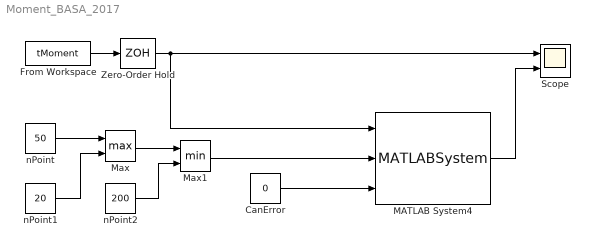
/*
 * Moment_BASA_2017.c
 *
 * Code generation for model "Moment_BASA_2017".
 *
 * Model version              : 1.26
 * Simulink Coder version : 8.12 (R2017a) 16-Feb-2017
 * C source code generated on : Fri Jan 14 15:39:42 2022
 *
 * Target selection: grt.tlc
 * Note: GRT includes extra infrastructure and instrumentation for prototyping
 * Embedded hardware selection: Intel->x86-64 (Windows64)
 * Code generation objectives: Unspecified
 * Validation result: Not run
 */

#include "Moment_BASA_2017.h"
#include "Moment_BASA_2017_private.h"

/* Block signals (auto storage) */
B_Moment_BASA_2017_T Moment_BASA_2017_B;

/* Block states (auto storage) */
DW_Moment_BASA_2017_T Moment_BASA_2017_DW;

/* Real-time model */
RT_MODEL_Moment_BASA_2017_T Moment_BASA_2017_M_;
RT_MODEL_Moment_BASA_2017_T *const Moment_BASA_2017_M = &Moment_BASA_2017_M_;

/* Forward declaration for local functions */
static void Moment_BASA_2017_emxInit_real_T(emxArray_real_T_Moment_BASA_2_T
  **pEmxArray, int32_T numDimensions);
static void Moment_BA_emxInitStruct_CMoment(CMoment_Moment_BASA_2017_T *pStruct);
static void Moment_BASA_2_emxEnsureCapacity(emxArray__common_Moment_BASA__T
  *emxArray, int32_T oldNumel, uint32_T elementSize);
static real_T Moment_BASA_2017_sum(const emxArray_real_T_Moment_BASA_2_T *x);
static void Moment_BASA_2017_power(const emxArray_real_T_Moment_BASA_2_T *a,
  emxArray_real_T_Moment_BASA_2_T *y);
static void Moment_BASA_2017_emxFree_real_T(emxArray_real_T_Moment_BASA_2_T
  **pEmxArray);
static real_T Moment_BASA_201_SystemCore_step(CMoment_Moment_BASA_2017_T *obj,
  real_T varargin_1, real_T varargin_2, real_T varargin_3);
static void Moment_BA_emxFreeStruct_CMoment(CMoment_Moment_BASA_2017_T *pStruct);
static void Moment_BASA_2017_emxInit_real_T(emxArray_real_T_Moment_BASA_2_T
  **pEmxArray, int32_T numDimensions)
{
  emxArray_real_T_Moment_BASA_2_T *emxArray;
  int32_T i;
  *pEmxArray = (emxArray_real_T_Moment_BASA_2_T *)malloc(sizeof
    (emxArray_real_T_Moment_BASA_2_T));
  emxArray = *pEmxArray;
  emxArray->data = (real_T *)NULL;
  emxArray->numDimensions = numDimensions;
  emxArray->size = (int32_T *)malloc((uint32_T)(sizeof(int32_T) * numDimensions));
  emxArray->allocatedSize = 0;
  emxArray->canFreeData = true;
  for (i = 0; i < numDimensions; i++) {
    emxArray->size[i] = 0;
  }
}

static void Moment_BA_emxInitStruct_CMoment(CMoment_Moment_BASA_2017_T *pStruct)
{
  Moment_BASA_2017_emxInit_real_T(&pStruct->x0, 2);
  Moment_BASA_2017_emxInit_real_T(&pStruct->x_0, 2);
}

static void Moment_BASA_2_emxEnsureCapacity(emxArray__common_Moment_BASA__T
  *emxArray, int32_T oldNumel, uint32_T elementSize)
{
  int32_T newNumel;
  int32_T i;
  void *newData;
  if (oldNumel < 0) {
    oldNumel = 0;
  }

  newNumel = 1;
  for (i = 0; i < emxArray->numDimensions; i++) {
    newNumel *= emxArray->size[i];
  }

  if (newNumel > emxArray->allocatedSize) {
    i = emxArray->allocatedSize;
    if (i < 16) {
      i = 16;
    }

    while (i < newNumel) {
      if (i > 1073741823) {
        i = MAX_int32_T;
      } else {
        i <<= 1;
      }
    }

    newData = calloc((uint32_T)i, elementSize);
    if (emxArray->data != NULL) {
      memcpy(newData, emxArray->data, elementSize * oldNumel);
      if (emxArray->canFreeData) {
        free(emxArray->data);
      }
    }

    emxArray->data = newData;
    emxArray->allocatedSize = i;
    emxArray->canFreeData = true;
  }
}

static real_T Moment_BASA_2017_sum(const emxArray_real_T_Moment_BASA_2_T *x)
{
  real_T y;
  int32_T k;

  /* Start for MATLABSystem: '<Root>/MATLAB System4' */
  if (x->size[1] == 0) {
    y = 0.0;
  } else {
    y = x->data[0];
    for (k = 1; k + 1 <= x->size[1]; k++) {
      y += x->data[k];
    }
  }

  /* End of Start for MATLABSystem: '<Root>/MATLAB System4' */
  return y;
}

static void Moment_BASA_2017_power(const emxArray_real_T_Moment_BASA_2_T *a,
  emxArray_real_T_Moment_BASA_2_T *y)
{
  int32_T k;

  /* Start for MATLABSystem: '<Root>/MATLAB System4' */
  k = y->size[0] * y->size[1];
  y->size[0] = 1;
  y->size[1] = a->size[1];
  Moment_BASA_2_emxEnsureCapacity((emxArray__common_Moment_BASA__T *)y, k,
    sizeof(real_T));
  for (k = 0; k + 1 <= a->size[1]; k++) {
    y->data[k] = a->data[k] * a->data[k];
  }

  /* End of Start for MATLABSystem: '<Root>/MATLAB System4' */
}

static void Moment_BASA_2017_emxFree_real_T(emxArray_real_T_Moment_BASA_2_T
  **pEmxArray)
{
  if (*pEmxArray != (emxArray_real_T_Moment_BASA_2_T *)NULL) {
    if (((*pEmxArray)->data != (real_T *)NULL) && (*pEmxArray)->canFreeData) {
      free((void *)(*pEmxArray)->data);
    }

    free((void *)(*pEmxArray)->size);
    free((void *)*pEmxArray);
    *pEmxArray = (emxArray_real_T_Moment_BASA_2_T *)NULL;
  }
}

real_T rt_roundd_snf(real_T u)
{
  real_T y;
  if (fabs(u) < 4.503599627370496E+15) {
    if (u >= 0.5) {
      y = floor(u + 0.5);
    } else if (u > -0.5) {
      y = u * 0.0;
    } else {
      y = ceil(u - 0.5);
    }
  } else {
    y = u;
  }

  return y;
}

static real_T Moment_BASA_201_SystemCore_step(CMoment_Moment_BASA_2017_T *obj,
  real_T varargin_1, real_T varargin_2, real_T varargin_3)
{
  CMoment_Moment_BASA_2017_T *obj_0;
  real_T n;
  real_T yy_data[200];
  real_T ysum;
  real_T xy_data[200];
  real_T z1;
  int32_T i;
  int32_T i_0;
  emxArray_real_T_Moment_BASA_2_T *tmp;
  emxArray_real_T_Moment_BASA_2_T *tmp_0;
  real_T obj_data[200];
  int32_T loop_ub;
  int32_T yy_size[2];
  int32_T xy_size[2];
  int32_T obj_size[2];
  emxArray_real_T_Moment_BASA_2_T obj_data_0;
  emxArray_real_T_Moment_BASA_2_T yy_data_0;
  emxArray_real_T_Moment_BASA_2_T xy_data_0;

  /* Start for MATLABSystem: '<Root>/MATLAB System4' */
  obj_0 = obj;
  n = fmax(fmin(varargin_2, 200.0), 6.0);
  obj_0->nm = n;
  ysum = obj_0->NCount;
  if (2.0 > ysum) {
    i_0 = 0;
    i = 0;
  } else {
    i_0 = 1;
    i = (int32_T)ysum;
  }

  yy_size[0] = 1;
  yy_size[1] = i - i_0;
  loop_ub = i - i_0;
  for (i = 0; i < loop_ub; i++) {
    yy_data[yy_size[0] * i] = obj_0->m[i_0 + i];
  }

  loop_ub = yy_size[1];
  for (i_0 = 0; i_0 < loop_ub; i_0++) {
    obj_0->m[i_0] = yy_data[yy_size[0] * i_0];
  }

  if (varargin_3 == 0.0) {
    obj_0->m[(int32_T)obj_0->NCount - 1] = varargin_1;
  } else {
    obj_0->m[(int32_T)obj_0->NCount - 1] = obj_0->m[(int32_T)(obj_0->NCount -
      1.0) - 1];
  }

  /*             kodError = length(obj.x0) */
  /*             if (obj.nm ~= n) | (kodError==0) */
  obj_0->nm = n;
  i_0 = obj_0->x0->size[0] * obj_0->x0->size[1];
  obj_0->x0->size[0] = 1;
  obj_0->x0->size[1] = (int32_T)floor(n - 1.0) + 1;
  Moment_BASA_2_emxEnsureCapacity((emxArray__common_Moment_BASA__T *)obj_0->x0,
    i_0, sizeof(real_T));
  loop_ub = (int32_T)floor(n - 1.0);
  for (i_0 = 0; i_0 <= loop_ub; i_0++) {
    obj_0->x0->data[obj_0->x0->size[0] * i_0] = i_0;
  }

  obj_size[0] = 1;
  obj_size[1] = (int32_T)n;
  loop_ub = (int32_T)n;
  for (i_0 = 0; i_0 < loop_ub; i_0++) {
    obj_data[obj_size[0] * i_0] = obj_0->x0->data[obj_0->x0->size[0] * i_0];
  }

  Moment_BASA_2017_emxInit_real_T(&tmp_0, 2);

  /* Start for MATLABSystem: '<Root>/MATLAB System4' */
  obj_data_0.data = (real_T *)&obj_data;
  obj_data_0.size = (int32_T *)&obj_size;
  obj_data_0.allocatedSize = 200;
  obj_data_0.numDimensions = 2;
  obj_data_0.canFreeData = false;

  /* Start for MATLABSystem: '<Root>/MATLAB System4' */
  obj_0->xsum = Moment_BASA_2017_sum(&obj_data_0);
  Moment_BASA_2017_power(obj_0->x0, tmp_0);
  obj_0->x2sum = Moment_BASA_2017_sum(tmp_0);
  ysum = obj_0->xsum;
  obj_0->x_sr = ysum / n;
  i_0 = obj_0->x_0->size[0] * obj_0->x_0->size[1];
  obj_0->x_0->size[0] = 1;
  obj_0->x_0->size[1] = obj_0->x0->size[1];
  Moment_BASA_2_emxEnsureCapacity((emxArray__common_Moment_BASA__T *)obj_0->x_0,
    i_0, sizeof(real_T));
  loop_ub = obj_0->x0->size[0] * obj_0->x0->size[1];
  Moment_BASA_2017_emxFree_real_T(&tmp_0);

  /* Start for MATLABSystem: '<Root>/MATLAB System4' */
  for (i_0 = 0; i_0 < loop_ub; i_0++) {
    obj_0->x_0->data[i_0] = obj_0->x0->data[i_0] - obj_0->x_sr;
  }

  Moment_BASA_2017_emxInit_real_T(&tmp, 2);

  /* Start for MATLABSystem: '<Root>/MATLAB System4' */
  Moment_BASA_2017_power(obj_0->x_0, tmp);
  obj_0->x_01 = Moment_BASA_2017_sum(tmp);
  z1 = obj_0->x_01;
  obj_0->x_001 = 1.0 / z1;
  obj_0->xsum2 = obj_0->xsum * obj_0->xsum;
  ysum = obj_0->x2sum;
  z1 = obj_0->xsum2;
  obj_0->z0 = ysum / z1;
  z1 = 1.0 - obj_0->z0 * n;
  obj_0->z01 = 1.0 / z1;
  z1 = obj_0->xsum;
  obj_0->z002 = 1.0 / z1;

  /*             end */
  ysum = (obj_0->NCount - obj_0->nm) + 1.0;
  z1 = obj_0->NCount;
  Moment_BASA_2017_emxFree_real_T(&tmp);

  /* Start for MATLABSystem: '<Root>/MATLAB System4' */
  if (ysum > z1) {
    i_0 = 0;
    i = 0;
  } else {
    i_0 = (int32_T)ysum - 1;
    i = (int32_T)z1;
  }

  yy_size[0] = 1;
  yy_size[1] = i - i_0;
  loop_ub = i - i_0;
  for (i = 0; i < loop_ub; i++) {
    yy_data[yy_size[0] * i] = obj_0->m[i_0 + i];
  }

  yy_data_0.data = (real_T *)&yy_data;
  yy_data_0.size = (int32_T *)&yy_size;
  yy_data_0.allocatedSize = 200;
  yy_data_0.numDimensions = 2;
  yy_data_0.canFreeData = false;

  /* Start for MATLABSystem: '<Root>/MATLAB System4' */
  ysum = Moment_BASA_2017_sum(&yy_data_0);
  xy_size[0] = 1;
  xy_size[1] = obj_0->x0->size[1];
  loop_ub = obj_0->x0->size[0] * obj_0->x0->size[1];
  for (i_0 = 0; i_0 < loop_ub; i_0++) {
    xy_data[i_0] = obj_0->x0->data[i_0] * yy_data[i_0];
  }

  xy_data_0.data = (real_T *)&xy_data;
  xy_data_0.size = (int32_T *)&xy_size;
  xy_data_0.allocatedSize = 200;
  xy_data_0.numDimensions = 2;
  xy_data_0.canFreeData = false;

  /* Start for MATLABSystem: '<Root>/MATLAB System4' */
  z1 = Moment_BASA_2017_sum(&xy_data_0) * obj_0->z002;
  z1 = (z1 - obj_0->z0 * ysum) * obj_0->z01;
  ysum = (ysum - z1 * n) * obj_0->z002;
  return (n - rt_roundd_snf(n / 3.0)) * ysum + z1;
}

static void Moment_BA_emxFreeStruct_CMoment(CMoment_Moment_BASA_2017_T *pStruct)
{
  Moment_BASA_2017_emxFree_real_T(&pStruct->x0);
  Moment_BASA_2017_emxFree_real_T(&pStruct->x_0);
}

/* Model step function */
void Moment_BASA_2017_step(void)
{
  /* local block i/o variables */
  real_T rtb_ZeroOrderHold;
  real_T rtb_MATLABSystem4;

  /* FromWorkspace: '<Root>/From Workspace' */
  {
    real_T *pDataValues = (real_T *)
      Moment_BASA_2017_DW.FromWorkspace_PWORK.DataPtr;
    real_T *pTimeValues = (real_T *)
      Moment_BASA_2017_DW.FromWorkspace_PWORK.TimePtr;
    int_T currTimeIndex = Moment_BASA_2017_DW.FromWorkspace_IWORK.PrevIndex;
    real_T t = Moment_BASA_2017_M->Timing.t[0];

    /* Get index */
    if (t <= pTimeValues[0]) {
      currTimeIndex = 0;
    } else if (t >= pTimeValues[8999]) {
      currTimeIndex = 8998;
    } else {
      if (t < pTimeValues[currTimeIndex]) {
        while (t < pTimeValues[currTimeIndex]) {
          currTimeIndex--;
        }
      } else {
        while (t >= pTimeValues[currTimeIndex + 1]) {
          currTimeIndex++;
        }
      }
    }

    Moment_BASA_2017_DW.FromWorkspace_IWORK.PrevIndex = currTimeIndex;

    /* Post output */
    {
      real_T t1 = pTimeValues[currTimeIndex];
      real_T t2 = pTimeValues[currTimeIndex + 1];
      if (t1 == t2) {
        if (t < t1) {
          Moment_BASA_2017_B.FromWorkspace = pDataValues[currTimeIndex];
        } else {
          Moment_BASA_2017_B.FromWorkspace = pDataValues[currTimeIndex + 1];
        }
      } else {
        real_T f1 = (t2 - t) / (t2 - t1);
        real_T f2 = 1.0 - f1;
        real_T d1;
        real_T d2;
        int_T TimeIndex= currTimeIndex;
        d1 = pDataValues[TimeIndex];
        d2 = pDataValues[TimeIndex + 1];
        Moment_BASA_2017_B.FromWorkspace = (real_T) rtInterpolate(d1, d2, f1, f2);
        pDataValues += 9000;
      }
    }
  }

  /* ZeroOrderHold: '<Root>/Zero-Order Hold' */
  rtb_ZeroOrderHold = Moment_BASA_2017_B.FromWorkspace;

  /* MATLABSystem: '<Root>/MATLAB System4' incorporates:
   *  Constant: '<Root>/CanError'
   *  Constant: '<Root>/nPoint'
   *  Constant: '<Root>/nPoint1'
   *  Constant: '<Root>/nPoint2'
   *  Start for MATLABSystem: '<Root>/MATLAB System4'
   *  MinMax: '<Root>/Max'
   *  MinMax: '<Root>/Max1'
   */
  rtb_MATLABSystem4 = Moment_BASA_201_SystemCore_step(&Moment_BASA_2017_DW.obj,
    rtb_ZeroOrderHold, fmin(fmax(Moment_BASA_2017_P.nPoint_Value,
    Moment_BASA_2017_P.nPoint1_Value), Moment_BASA_2017_P.nPoint2_Value),
    Moment_BASA_2017_P.CanError_Value);

  /* Matfile logging */
  rt_UpdateTXYLogVars(Moment_BASA_2017_M->rtwLogInfo,
                      (Moment_BASA_2017_M->Timing.t));

  /* signal main to stop simulation */
  {                                    /* Sample time: [0.0s, 0.0s] */
    if ((rtmGetTFinal(Moment_BASA_2017_M)!=-1) &&
        !((rtmGetTFinal(Moment_BASA_2017_M)-Moment_BASA_2017_M->Timing.t[0]) >
          Moment_BASA_2017_M->Timing.t[0] * (DBL_EPSILON))) {
      rtmSetErrorStatus(Moment_BASA_2017_M, "Simulation finished");
    }
  }

  /* Update absolute time for base rate */
  /* The "clockTick0" counts the number of times the code of this task has
   * been executed. The absolute time is the multiplication of "clockTick0"
   * and "Timing.stepSize0". Size of "clockTick0" ensures timer will not
   * overflow during the application lifespan selected.
   * Timer of this task consists of two 32 bit unsigned integers.
   * The two integers represent the low bits Timing.clockTick0 and the high bits
   * Timing.clockTickH0. When the low bit overflows to 0, the high bits increment.
   */
  if (!(++Moment_BASA_2017_M->Timing.clockTick0)) {
    ++Moment_BASA_2017_M->Timing.clockTickH0;
  }

  Moment_BASA_2017_M->Timing.t[0] = Moment_BASA_2017_M->Timing.clockTick0 *
    Moment_BASA_2017_M->Timing.stepSize0 +
    Moment_BASA_2017_M->Timing.clockTickH0 *
    Moment_BASA_2017_M->Timing.stepSize0 * 4294967296.0;

  {
    /* Update absolute timer for sample time: [0.01s, 0.0s] */
    /* The "clockTick1" counts the number of times the code of this task has
     * been executed. The resolution of this integer timer is 0.01, which is the step size
     * of the task. Size of "clockTick1" ensures timer will not overflow during the
     * application lifespan selected.
     * Timer of this task consists of two 32 bit unsigned integers.
     * The two integers represent the low bits Timing.clockTick1 and the high bits
     * Timing.clockTickH1. When the low bit overflows to 0, the high bits increment.
     */
    Moment_BASA_2017_M->Timing.clockTick1++;
    if (!Moment_BASA_2017_M->Timing.clockTick1) {
      Moment_BASA_2017_M->Timing.clockTickH1++;
    }
  }
}
